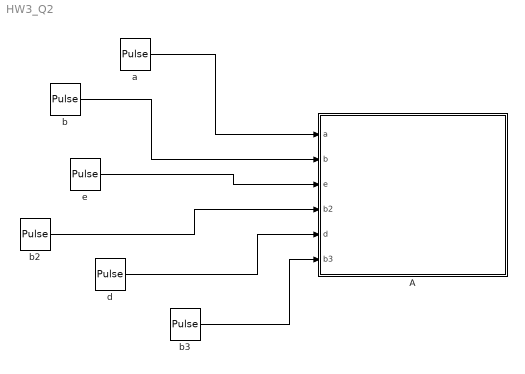
== stateflow chart HW3_Q2/A ==
  state B [parallel]
    state State_1
    state State_2
    (default) -> State_1
    State_1 -> State_2 : [c]
    State_2 -> State_1 : [(b || b2 || b3) && in(C.D.D2)]
  state C [parallel]
    state D
      state D1
      state D2
      (default) -> D1
      D1 -> D2 : [e]{c = 0;}
      D2 -> D2 : [e]
    state G
    G -> D : [a]{c = 1;}
    (default) -> G
    D -> G : [d]
  data: a input; e input; d input; b2 input; b input; c local =0; b3 input

/*
 * File: HW3_Q2.c
 *
 * Code generated for Simulink model 'HW3_Q2'.
 *
 * Model version                  : 1.5
 * Simulink Coder version         : 9.7 (R2022a) 13-Nov-2021
 * C/C++ source code generated on : Tue Jun  6 17:22:44 2023
 *
 * Target selection: ert.tlc
 * Embedded hardware selection: Atmel->AVR
 * Code generation objectives: Unspecified
 * Validation result: Not run
 */

#include "HW3_Q2.h"
#include "rtwtypes.h"

/* Named constants for Chart: '<Root>/A' */
#define HW3_Q2_IN_D                    ((uint8_T)1U)
#define HW3_Q2_IN_D1                   ((uint8_T)1U)
#define HW3_Q2_IN_D2                   ((uint8_T)2U)
#define HW3_Q2_IN_G                    ((uint8_T)2U)
#define HW3_Q2_IN_NO_ACTIVE_CHILD      ((uint8_T)0U)
#define HW3_Q2_IN_State_1              ((uint8_T)1U)
#define HW3_Q2_IN_State_2              ((uint8_T)2U)

/* Block states (default storage) */
DW_HW3_Q2_T HW3_Q2_DW;

/* Real-time model */
static RT_MODEL_HW3_Q2_T HW3_Q2_M_;
RT_MODEL_HW3_Q2_T *const HW3_Q2_M = &HW3_Q2_M_;

/* Model step function */
void HW3_Q2_step(void)
{
  real_T rtb_a;
  real_T rtb_b;
  real_T rtb_b2;
  real_T rtb_b3;
  real_T rtb_d;
  real_T rtb_e;

  /* DiscretePulseGenerator: '<Root>/a' */
  rtb_a = (HW3_Q2_DW.clockTickCounter < HW3_Q2_P.a_Duty) &&
    (HW3_Q2_DW.clockTickCounter >= 0L) ? HW3_Q2_P.a_Amp : 0.0;
  if (HW3_Q2_DW.clockTickCounter >= HW3_Q2_P.a_Period - 1.0) {
    HW3_Q2_DW.clockTickCounter = 0L;
  } else {
    HW3_Q2_DW.clockTickCounter++;
  }

  /* End of DiscretePulseGenerator: '<Root>/a' */

  /* DiscretePulseGenerator: '<Root>/e' */
  rtb_e = (HW3_Q2_DW.clockTickCounter_g < HW3_Q2_P.e_Duty) &&
    (HW3_Q2_DW.clockTickCounter_g >= 0L) ? HW3_Q2_P.e_Amp : 0.0;
  if (HW3_Q2_DW.clockTickCounter_g >= HW3_Q2_P.e_Period - 1.0) {
    HW3_Q2_DW.clockTickCounter_g = 0L;
  } else {
    HW3_Q2_DW.clockTickCounter_g++;
  }

  /* End of DiscretePulseGenerator: '<Root>/e' */

  /* DiscretePulseGenerator: '<Root>/d' */
  rtb_d = (HW3_Q2_DW.clockTickCounter_i < HW3_Q2_P.d_Duty) &&
    (HW3_Q2_DW.clockTickCounter_i >= 0L) ? HW3_Q2_P.d_Amp : 0.0;
  if (HW3_Q2_DW.clockTickCounter_i >= HW3_Q2_P.d_Period - 1.0) {
    HW3_Q2_DW.clockTickCounter_i = 0L;
  } else {
    HW3_Q2_DW.clockTickCounter_i++;
  }

  /* End of DiscretePulseGenerator: '<Root>/d' */

  /* DiscretePulseGenerator: '<Root>/b2' */
  rtb_b2 = (HW3_Q2_DW.clockTickCounter_f < HW3_Q2_P.b2_Duty) &&
    (HW3_Q2_DW.clockTickCounter_f >= 0L) ? HW3_Q2_P.b2_Amp : 0.0;
  if (HW3_Q2_DW.clockTickCounter_f >= HW3_Q2_P.b2_Period - 1.0) {
    HW3_Q2_DW.clockTickCounter_f = 0L;
  } else {
    HW3_Q2_DW.clockTickCounter_f++;
  }

  /* End of DiscretePulseGenerator: '<Root>/b2' */

  /* DiscretePulseGenerator: '<Root>/b' */
  rtb_b = (HW3_Q2_DW.clockTickCounter_a < HW3_Q2_P.b_Duty) &&
    (HW3_Q2_DW.clockTickCounter_a >= 0L) ? HW3_Q2_P.b_Amp : 0.0;
  if (HW3_Q2_DW.clockTickCounter_a >= HW3_Q2_P.b_Period - 1.0) {
    HW3_Q2_DW.clockTickCounter_a = 0L;
  } else {
    HW3_Q2_DW.clockTickCounter_a++;
  }

  /* End of DiscretePulseGenerator: '<Root>/b' */

  /* DiscretePulseGenerator: '<Root>/b3' */
  rtb_b3 = (HW3_Q2_DW.clockTickCounter_c < HW3_Q2_P.b3_Duty) &&
    (HW3_Q2_DW.clockTickCounter_c >= 0L) ? HW3_Q2_P.b3_Amp : 0.0;
  if (HW3_Q2_DW.clockTickCounter_c >= HW3_Q2_P.b3_Period - 1.0) {
    HW3_Q2_DW.clockTickCounter_c = 0L;
  } else {
    HW3_Q2_DW.clockTickCounter_c++;
  }

  /* End of DiscretePulseGenerator: '<Root>/b3' */

  /* Chart: '<Root>/A' */
  if (HW3_Q2_DW.is_active_c3_HW3_Q2 == 0U) {
    HW3_Q2_DW.is_active_c3_HW3_Q2 = 1U;
    HW3_Q2_DW.is_B = HW3_Q2_IN_State_1;
    HW3_Q2_DW.is_C = HW3_Q2_IN_G;
  } else {
    if (HW3_Q2_DW.is_B == HW3_Q2_IN_State_1) {
      if (HW3_Q2_DW.c != 0.0) {
        HW3_Q2_DW.is_B = HW3_Q2_IN_State_2;
      }

      /* case IN_State_2: */
    } else if (((rtb_b != 0.0) || (rtb_b2 != 0.0) || (rtb_b3 != 0.0)) &&
               (HW3_Q2_DW.is_D == HW3_Q2_IN_D2)) {
      HW3_Q2_DW.is_B = HW3_Q2_IN_State_1;
    }

    if (HW3_Q2_DW.is_C == HW3_Q2_IN_D) {
      if (rtb_d != 0.0) {
        HW3_Q2_DW.is_D = HW3_Q2_IN_NO_ACTIVE_CHILD;
        HW3_Q2_DW.is_C = HW3_Q2_IN_G;
      } else if (HW3_Q2_DW.is_D == HW3_Q2_IN_D1) {
        if (rtb_e != 0.0) {
          HW3_Q2_DW.c = 0.0;
          HW3_Q2_DW.is_D = HW3_Q2_IN_D2;
        }

        /* case IN_D2: */
      } else if (rtb_e != 0.0) {
        HW3_Q2_DW.is_D = HW3_Q2_IN_D2;
      }

      /* case IN_G: */
    } else if (rtb_a != 0.0) {
      HW3_Q2_DW.c = 1.0;
      HW3_Q2_DW.is_C = HW3_Q2_IN_D;
      HW3_Q2_DW.is_D = HW3_Q2_IN_D1;
    }
  }

  /* End of Chart: '<Root>/A' */
}
